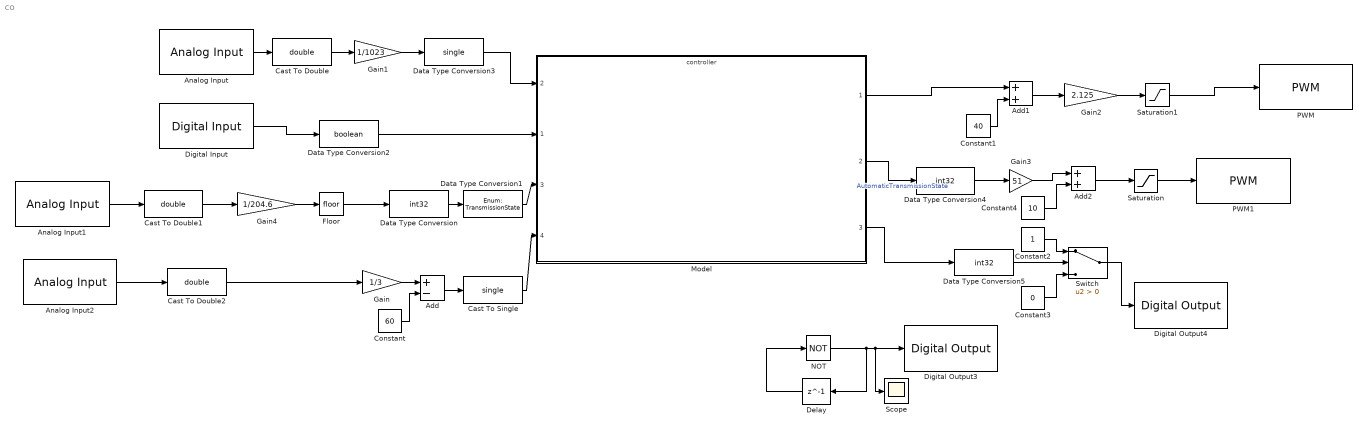
/*
 * Academic License - for use in teaching, academic research, and meeting
 * course requirements at degree granting institutions only.  Not for
 * government, commercial, or other organizational use.
 *
 * File: co.c
 *
 * Code generated for Simulink model 'co'.
 *
 * Model version                  : 5.9
 * Simulink Coder version         : 9.8 (R2022b) 13-May-2022
 * C/C++ source code generated on : Wed Jun  7 12:40:47 2023
 *
 * Target selection: ert.tlc
 * Embedded hardware selection: Atmel->AVR
 * Code generation objectives: Unspecified
 * Validation result: Not run
 */

#include "co.h"
#include <math.h>
#include "rt_nonfinite.h"
#include "rt_roundd_snf.h"
#include "rtwtypes.h"
#include "co_types.h"
#include "co_private.h"
#include "controller.h"

/* Block signals (default storage) */
B_co_T co_B;

/* Block states (default storage) */
DW_co_T co_DW;

/* Real-time model */
static RT_MODEL_co_T co_M_;
RT_MODEL_co_T *const co_M = &co_M_;
static void rate_scheduler(void);

/*
 *         This function updates active task flag for each subrate.
 *         The function is called at model base rate, hence the
 *         generated code self-manages all its subrates.
 */
static void rate_scheduler(void)
{
  /* Compute which subrates run during the next base time step.  Subrates
   * are an integer multiple of the base rate counter.  Therefore, the subtask
   * counter is reset when it reaches its limit (zero means run).
   */
  (co_M->Timing.TaskCounters.TID[1])++;
  if ((co_M->Timing.TaskCounters.TID[1]) > 4) {/* Sample time: [0.5s, 0.0s] */
    co_M->Timing.TaskCounters.TID[1] = 0;
  }
}

/* Model step function */
void co_step(void)
{
  /* local block i/o variables */
  real32_T rtb_Model_o1;
  WarningState rtb_Model_o3;
  TransmissionState rtb_AutomaticTransmissionState;
  codertarget_arduinobase_int_l_T *obj_0;
  codertarget_arduinobase_inter_T *obj;
  real32_T rtb_CastToSingle;
  uint16_T b_varargout_1;
  uint8_T tmp;
  boolean_T b_value;
  TransmissionState rtb_DataTypeConversion1;

  /* MATLABSystem: '<Root>/Digital Input' */
  if (co_DW.obj_e.SampleTime != co_P.DigitalInput_SampleTime) {
    co_DW.obj_e.SampleTime = co_P.DigitalInput_SampleTime;
  }

  b_value = readDigitalPin(8);

  /* MATLABSystem: '<Root>/Analog Input' */
  if (co_DW.obj_o.SampleTime != co_P.AnalogInput_SampleTime) {
    co_DW.obj_o.SampleTime = co_P.AnalogInput_SampleTime;
  }

  obj = &co_DW.obj_o;
  obj->AnalogInDriverObj.MW_ANALOGIN_HANDLE = MW_AnalogIn_GetHandle(18UL);
  co_B.datatype_id = MW_ANALOGIN_UINT16;
  MW_AnalogInSingle_ReadResult(co_DW.obj_o.AnalogInDriverObj.MW_ANALOGIN_HANDLE,
    &b_varargout_1, co_B.datatype_id);

  /* DataTypeConversion: '<Root>/Data Type Conversion3' incorporates:
   *  DataTypeConversion: '<Root>/Cast To Double'
   *  Gain: '<Root>/Gain1'
   *  MATLABSystem: '<Root>/Analog Input'
   */
  co_B.DataTypeConversion3 = (real32_T)(co_P.Gain1_Gain * (real_T)b_varargout_1);

  /* MATLABSystem: '<Root>/Analog Input1' */
  if (co_DW.obj_h.SampleTime != co_P.AnalogInput1_SampleTime) {
    co_DW.obj_h.SampleTime = co_P.AnalogInput1_SampleTime;
  }

  obj = &co_DW.obj_h;
  obj->AnalogInDriverObj.MW_ANALOGIN_HANDLE = MW_AnalogIn_GetHandle(17UL);
  co_B.datatype_id = MW_ANALOGIN_UINT16;
  MW_AnalogInSingle_ReadResult(co_DW.obj_h.AnalogInDriverObj.MW_ANALOGIN_HANDLE,
    &b_varargout_1, co_B.datatype_id);

  /* DataTypeConversion: '<Root>/Data Type Conversion' incorporates:
   *  DataTypeConversion: '<Root>/Cast To Double1'
   *  Gain: '<Root>/Gain4'
   *  MATLABSystem: '<Root>/Analog Input1'
   *  Rounding: '<Root>/Floor'
   */
  co_B.u0 = floor(co_P.Gain4_Gain * (real_T)b_varargout_1);
  if (rtIsNaN(co_B.u0) || rtIsInf(co_B.u0)) {
    co_B.u0 = 0.0;
  } else {
    co_B.u0 = fmod(co_B.u0, 4.294967296E+9);
  }

  /* DataTypeConversion: '<Root>/Data Type Conversion1' incorporates:
   *  DataTypeConversion: '<Root>/Data Type Conversion'
   */
  rtb_DataTypeConversion1 = (TransmissionState)(co_B.u0 < 0.0 ? -(int32_T)
    (uint32_T)-co_B.u0 : (int32_T)(uint32_T)co_B.u0);

  /* MATLABSystem: '<Root>/Analog Input2' */
  if (co_DW.obj.SampleTime != co_P.AnalogInput2_SampleTime) {
    co_DW.obj.SampleTime = co_P.AnalogInput2_SampleTime;
  }

  obj = &co_DW.obj;
  obj->AnalogInDriverObj.MW_ANALOGIN_HANDLE = MW_AnalogIn_GetHandle(16UL);
  co_B.datatype_id = MW_ANALOGIN_UINT16;
  MW_AnalogInSingle_ReadResult(co_DW.obj.AnalogInDriverObj.MW_ANALOGIN_HANDLE,
    &b_varargout_1, co_B.datatype_id);

  /* DataTypeConversion: '<Root>/Cast To Single' incorporates:
   *  Constant: '<Root>/Constant'
   *  DataTypeConversion: '<Root>/Cast To Double2'
   *  Gain: '<Root>/Gain'
   *  MATLABSystem: '<Root>/Analog Input2'
   *  Sum: '<Root>/Add'
   */
  rtb_CastToSingle = (real32_T)(co_P.Gain_Gain * (real_T)b_varargout_1 -
    co_P.Constant_Value);

  /* ModelReference: '<Root>/Model' incorporates:
   *  MATLABSystem: '<Root>/Digital Input'
   */
  controller(&b_value, &co_B.DataTypeConversion3, &rtb_DataTypeConversion1,
             &rtb_CastToSingle, &rtb_Model_o1, &rtb_AutomaticTransmissionState,
             &rtb_Model_o3, &(co_DW.Model_InstanceData.rtb),
             &(co_DW.Model_InstanceData.rtdw));

  /* Switch: '<Root>/Switch' incorporates:
   *  Constant: '<Root>/Constant2'
   *  Constant: '<Root>/Constant3'
   *  DataTypeConversion: '<Root>/Data Type Conversion5'
   */
  if ((int32_T)rtb_Model_o3 > co_P.Switch_Threshold) {
    co_B.u0 = co_P.Constant2_Value;
  } else {
    co_B.u0 = co_P.Constant3_Value;
  }

  /* MATLABSystem: '<Root>/Digital Output4' incorporates:
   *  Switch: '<Root>/Switch'
   */
  co_B.u0 = rt_roundd_snf(co_B.u0);
  if (co_B.u0 < 256.0) {
    if (co_B.u0 >= 0.0) {
      tmp = (uint8_T)co_B.u0;
    } else {
      tmp = 0U;
    }
  } else {
    tmp = MAX_uint8_T;
  }

  writeDigitalPin(6, tmp);

  /* End of MATLABSystem: '<Root>/Digital Output4' */

  /* MATLABSystem: '<Root>/PWM' */
  obj_0 = &co_DW.obj_e0;
  obj_0->PWMDriverObj.MW_PWM_HANDLE = MW_PWM_GetHandle(3UL);

  /* Gain: '<Root>/Gain2' incorporates:
   *  Constant: '<Root>/Constant1'
   *  Sum: '<Root>/Add1'
   */
  co_B.u0 = (rtb_Model_o1 + co_P.Constant1_Value) * co_P.Gain2_Gain;

  /* Saturate: '<Root>/Saturation1' */
  if (co_B.u0 > co_P.Saturation1_UpperSat) {
    co_B.u0 = co_P.Saturation1_UpperSat;
  } else if (co_B.u0 < co_P.Saturation1_LowerSat) {
    co_B.u0 = co_P.Saturation1_LowerSat;
  }

  /* MATLABSystem: '<Root>/PWM' incorporates:
   *  Saturate: '<Root>/Saturation1'
   */
  MW_PWM_SetDutyCycle(co_DW.obj_e0.PWMDriverObj.MW_PWM_HANDLE, fmax(fmin(co_B.u0,
    255.0), 0.0));

  /* MATLABSystem: '<Root>/PWM1' */
  obj_0 = &co_DW.obj_g;
  obj_0->PWMDriverObj.MW_PWM_HANDLE = MW_PWM_GetHandle(9UL);

  /* Sum: '<Root>/Add2' incorporates:
   *  Constant: '<Root>/Constant4'
   *  DataTypeConversion: '<Root>/Data Type Conversion4'
   *  Gain: '<Root>/Gain3'
   */
  co_B.u0 = (real_T)(co_P.Gain3_Gain * (int64_T)rtb_AutomaticTransmissionState) *
    2.9802322387695312E-8 + co_P.Constant4_Value;

  /* Saturate: '<Root>/Saturation' */
  if (co_B.u0 > co_P.Saturation_UpperSat) {
    co_B.u0 = co_P.Saturation_UpperSat;
  } else if (co_B.u0 < co_P.Saturation_LowerSat) {
    co_B.u0 = co_P.Saturation_LowerSat;
  }

  /* MATLABSystem: '<Root>/PWM1' incorporates:
   *  Saturate: '<Root>/Saturation'
   */
  MW_PWM_SetDutyCycle(co_DW.obj_g.PWMDriverObj.MW_PWM_HANDLE, fmax(fmin(co_B.u0,
    255.0), 0.0));
  if (co_M->Timing.TaskCounters.TID[1] == 0) {
    /* Logic: '<Root>/NOT' incorporates:
     *  Delay: '<Root>/Delay'
     */
    co_DW.Delay_DSTATE = !co_DW.Delay_DSTATE;

    /* MATLABSystem: '<Root>/Digital Output3' incorporates:
     *  Delay: '<Root>/Delay'
     */
    writeDigitalPin(13, (uint8_T)co_DW.Delay_DSTATE);
  }

  rate_scheduler();
}
